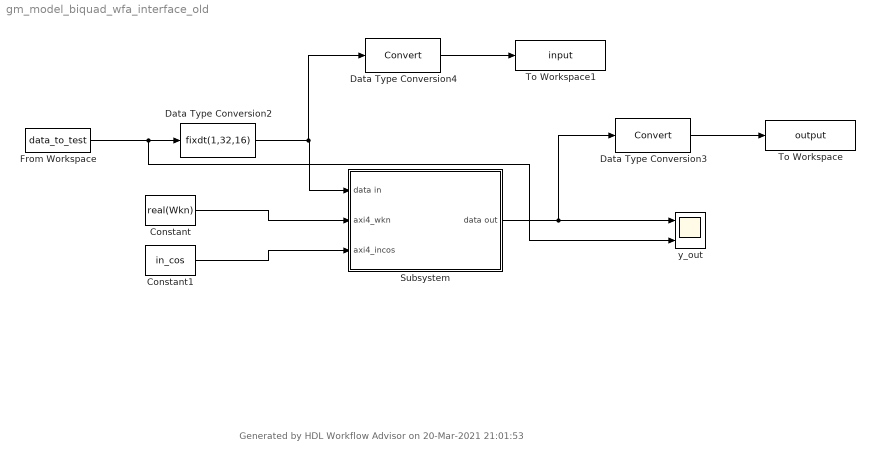
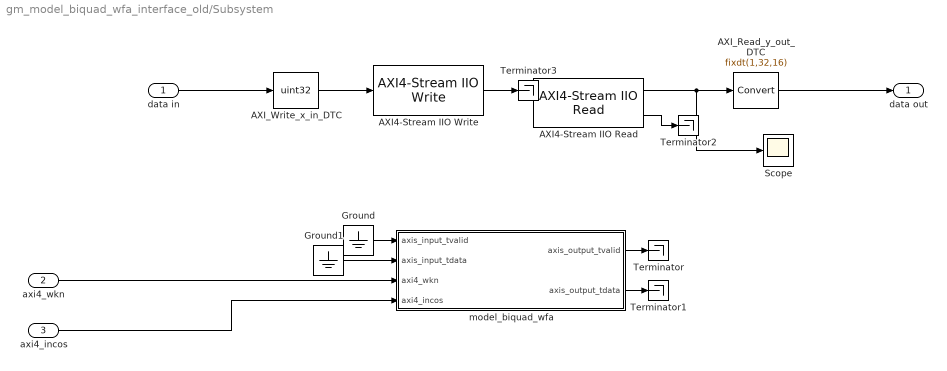
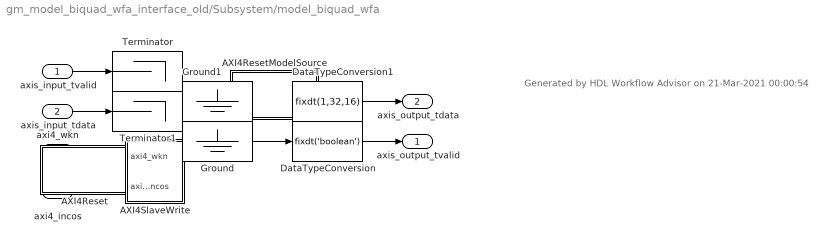
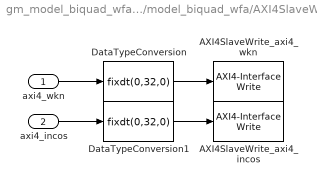
== system gm_model_biquad_wfa_interface_old/Subsystem/model_biquad_wfa/AXI4Reset ==

== system gm_model_biquad_wfa_interface_old/Subsystem/model_biquad_wfa/AXI4ResetModelSource ==

/*
 * Trial License - for use to evaluate programs for possible purchase as
 * an end-user only.
 *
 * File: gm_model_biquad_wfa_interface_old.c
 *
 * Code generated for Simulink model 'gm_model_biquad_wfa_interface_old'.
 *
 * Model version                  : 1.27
 * Simulink Coder version         : 9.4 (R2020b) 29-Jul-2020
 * C/C++ source code generated on : Sun Mar 21 00:25:24 2021
 *
 * Target selection: ert.tlc
 * Embedded hardware selection: ARM Compatible->ARM Cortex
 * Code generation objectives: Unspecified
 * Validation result: Not run
 */

#include "gm_model_biquad_wfa_interface_old.h"
#include "gm_model_biquad_wfa_interface_old_private.h"
#include "gm_model_biquad_wfa_interface_old_dt.h"

/* user code (top of source file) */
/* System '<S1>/model_biquad_wfa' */
#include "axi_lct.h"

/* Block signals (default storage) */
B_gm_model_biquad_wfa_interfa_T gm_model_biquad_wfa_interface_B;

/* Block states (default storage) */
DW_gm_model_biquad_wfa_interf_T gm_model_biquad_wfa_interfac_DW;

/* Real-time model */
static RT_MODEL_gm_model_biquad_wfa__T gm_model_biquad_wfa_interfac_M_;
RT_MODEL_gm_model_biquad_wfa__T *const gm_model_biquad_wfa_interfac_M =
  &gm_model_biquad_wfa_interfac_M_;

/* Forward declaration for local functions */
static struct iio_channel* gm_model_biquad_wf_base_getChan(struct iio_device*
  iioDev, boolean_T output);
static void gm_model_biquad_base_doTeardown(matlabshared_libiio_axistream_T *obj);
static struct iio_channel* gm_model_biquad__base_getChan_m(struct iio_device*
  iioDev, boolean_T output);
static void gm_model_biqu_base_doTeardown_m(matlabshared_libiio_axistre_m_T *obj);
static void gm_model_biqua_SystemCore_setup(matlabshared_libiio_axistream_T *obj);
static void gm_model_biq_SystemCore_setup_m(matlabshared_libiio_axistre_m_T *obj);
static struct iio_channel* gm_model_biquad_wf_base_getChan(struct iio_device*
  iioDev, boolean_T output)
{
  static const int8_T tmp_0[5] = { 100, 97, 116, 97, 48 };

  static const uint8_T tmp_2[22] = { 67U, 104U, 97U, 110U, 110U, 101U, 108U, 58U,
    32U, 37U, 115U, 32U, 110U, 111U, 116U, 32U, 102U, 111U, 117U, 110U, 100U,
    46U };

  static const uint8_T tmp_1[11] = { 69U, 82U, 82U, 79U, 82U, 91U, 37U, 100U,
    93U, 58U, 32U };

  static const uint8_T tmp[6] = { 100U, 97U, 116U, 97U, 48U, 0U };

  struct iio_channel* chanPtr;
  int32_T i;
  int32_T status;
  uint8_T b[3];
  for (i = 0; i < 6; i++) {
    gm_model_biquad_wfa_interface_B.b_o[i] = tmp[i];
  }

  chanPtr = iio_device_find_channel(iioDev,
    &gm_model_biquad_wfa_interface_B.b_o[0], (uint8_T)output);
  status = check_pointer(chanPtr);
  b[0] = 37U;
  b[1] = 100U;
  b[2] = 0U;
  for (i = 0; i < 5; i++) {
    gm_model_biquad_wfa_interface_B.c[i] = tmp_0[i];
  }

  sprintf(&gm_model_biquad_wfa_interface_B.strout_o[0], &b[0],
          &gm_model_biquad_wfa_interface_B.c[0]);
  if (status != 0) {
    for (i = 0; i < 11; i++) {
      gm_model_biquad_wfa_interface_B.b_j[i] = tmp_1[i];
    }

    for (i = 0; i < 22; i++) {
      gm_model_biquad_wfa_interface_B.b_j[i + 11] = tmp_2[i];
    }

    gm_model_biquad_wfa_interface_B.b_j[33] = 10U;
    gm_model_biquad_wfa_interface_B.b_j[34] = 0U;
    printf(&gm_model_biquad_wfa_interface_B.b_j[0], status,
           &gm_model_biquad_wfa_interface_B.strout_o[0]);
    exit(status);
  }

  return chanPtr;
}

static void gm_model_biquad_base_doTeardown(matlabshared_libiio_axistream_T *obj)
{
  int32_T status;
  if (obj->needsTeardown) {
    if (obj->bufExists) {
      iio_buffer_cancel(obj->iioBuf);
      iio_buffer_destroy(obj->iioBuf);
    }

    obj->bufExists = false;
    gm_model_biquad_wfa_interface_B.chanPtr_f = gm_model_biquad_wf_base_getChan
      (obj->iioDev, false);
    status = check_pointer(gm_model_biquad_wfa_interface_B.chanPtr_f);
    if (status == 0) {
      iio_channel_disable(gm_model_biquad_wfa_interface_B.chanPtr_f);
    }

    if (obj->bufExists) {
      iio_buffer_cancel(obj->iioBuf);
      iio_buffer_destroy(obj->iioBuf);
    }

    obj->bufExists = false;
    iio_context_destroy(obj->iioCtx);
    obj->needsTeardown = false;
  }
}

static struct iio_channel* gm_model_biquad__base_getChan_m(struct iio_device*
  iioDev, boolean_T output)
{
  static const int8_T tmp_0[5] = { 100, 97, 116, 97, 48 };

  static const uint8_T tmp_2[22] = { 67U, 104U, 97U, 110U, 110U, 101U, 108U, 58U,
    32U, 37U, 115U, 32U, 110U, 111U, 116U, 32U, 102U, 111U, 117U, 110U, 100U,
    46U };

  static const uint8_T tmp_1[11] = { 69U, 82U, 82U, 79U, 82U, 91U, 37U, 100U,
    93U, 58U, 32U };

  static const uint8_T tmp[6] = { 100U, 97U, 116U, 97U, 48U, 0U };

  struct iio_channel* chanPtr;
  int32_T i;
  int32_T status;
  uint8_T b[6];
  uint8_T b_0[3];
  for (i = 0; i < 6; i++) {
    b[i] = tmp[i];
  }

  chanPtr = iio_device_find_channel(iioDev, &b[0], (uint8_T)output);
  status = check_pointer(chanPtr);
  b_0[0] = 37U;
  b_0[1] = 100U;
  b_0[2] = 0U;
  for (i = 0; i < 5; i++) {
    gm_model_biquad_wfa_interface_B.c_b[i] = tmp_0[i];
  }

  sprintf(&gm_model_biquad_wfa_interface_B.strout_n[0], &b_0[0],
          &gm_model_biquad_wfa_interface_B.c_b[0]);
  if (status != 0) {
    for (i = 0; i < 11; i++) {
      gm_model_biquad_wfa_interface_B.b_gu[i] = tmp_1[i];
    }

    for (i = 0; i < 22; i++) {
      gm_model_biquad_wfa_interface_B.b_gu[i + 11] = tmp_2[i];
    }

    gm_model_biquad_wfa_interface_B.b_gu[33] = 10U;
    gm_model_biquad_wfa_interface_B.b_gu[34] = 0U;
    printf(&gm_model_biquad_wfa_interface_B.b_gu[0], status,
           &gm_model_biquad_wfa_interface_B.strout_n[0]);
    exit(status);
  }

  return chanPtr;
}

static void gm_model_biqu_base_doTeardown_m(matlabshared_libiio_axistre_m_T *obj)
{
  int32_T status;
  if (obj->needsTeardown) {
    if (obj->bufExists) {
      iio_buffer_cancel(obj->iioBuf);
      iio_buffer_destroy(obj->iioBuf);
    }

    obj->bufExists = false;
    gm_model_biquad_wfa_interface_B.chanPtr_o = gm_model_biquad__base_getChan_m
      (obj->iioDev, true);
    status = check_pointer(gm_model_biquad_wfa_interface_B.chanPtr_o);
    if (status == 0) {
      iio_channel_disable(gm_model_biquad_wfa_interface_B.chanPtr_o);
    }

    if (obj->bufExists) {
      iio_buffer_cancel(obj->iioBuf);
      iio_buffer_destroy(obj->iioBuf);
    }

    obj->bufExists = false;
    iio_context_destroy(obj->iioCtx);
    obj->needsTeardown = false;
  }
}

static void gm_model_biqua_SystemCore_setup(matlabshared_libiio_axistream_T *obj)
{
  static const uint8_T tmp[116] = { 70U, 97U, 105U, 108U, 101U, 100U, 32U, 116U,
    111U, 32U, 99U, 114U, 101U, 97U, 116U, 101U, 32U, 99U, 111U, 110U, 116U,
    101U, 120U, 116U, 32U, 102U, 111U, 114U, 32U, 117U, 114U, 105U, 58U, 32U,
    37U, 115U, 32U, 10U, 84U, 104U, 101U, 32U, 97U, 100U, 100U, 114U, 101U, 115U,
    115U, 32U, 105U, 115U, 32U, 110U, 111U, 116U, 32U, 97U, 118U, 97U, 105U,
    108U, 97U, 98U, 108U, 101U, 46U, 32U, 77U, 97U, 107U, 101U, 32U, 115U, 117U,
    114U, 101U, 32U, 116U, 104U, 101U, 32U, 100U, 101U, 118U, 105U, 99U, 101U,
    32U, 105U, 115U, 32U, 99U, 111U, 110U, 110U, 101U, 99U, 116U, 101U, 100U,
    32U, 97U, 110U, 100U, 32U, 116U, 114U, 121U, 32U, 97U, 103U, 97U, 105U, 110U,
    46U };

  static const uint8_T tmp_0[64] = { 69U, 82U, 82U, 79U, 82U, 91U, 37U, 100U,
    93U, 58U, 32U, 70U, 97U, 105U, 108U, 101U, 100U, 32U, 116U, 111U, 32U, 105U,
    110U, 105U, 116U, 105U, 97U, 108U, 105U, 122U, 101U, 32U, 115U, 116U, 114U,
    101U, 97U, 109U, 32U, 100U, 101U, 118U, 105U, 99U, 101U, 58U, 32U, 109U,
    119U, 105U, 112U, 99U, 111U, 114U, 101U, 48U, 58U, 115U, 50U, 109U, 109U,
    48U, 10U, 0U };

  static const uint8_T tmp_c[57] = { 69U, 82U, 82U, 79U, 82U, 91U, 37U, 100U,
    93U, 58U, 32U, 70U, 97U, 105U, 108U, 101U, 100U, 32U, 116U, 111U, 32U, 99U,
    114U, 101U, 97U, 116U, 101U, 32U, 98U, 117U, 102U, 102U, 101U, 114U, 32U,
    102U, 111U, 114U, 58U, 32U, 109U, 119U, 105U, 112U, 99U, 111U, 114U, 101U,
    48U, 58U, 115U, 50U, 109U, 109U, 48U, 10U, 0U };

  static const uint8_T tmp_d[39] = { 70U, 97U, 105U, 108U, 101U, 100U, 32U, 116U,
    111U, 32U, 99U, 111U, 110U, 102U, 105U, 103U, 117U, 114U, 101U, 32U, 100U,
    101U, 118U, 105U, 99U, 101U, 32U, 97U, 110U, 100U, 32U, 98U, 117U, 102U,
    102U, 101U, 114U, 115U, 46U };

  static const uint8_T tmp_6[31] = { 70U, 97U, 105U, 108U, 101U, 100U, 32U, 116U,
    111U, 32U, 115U, 101U, 116U, 117U, 112U, 32U, 107U, 101U, 114U, 110U, 101U,
    108U, 32U, 98U, 117U, 102U, 102U, 101U, 114U, 115U, 46U };

  static const uint8_T tmp_f[31] = { 70U, 97U, 105U, 108U, 101U, 100U, 32U, 116U,
    111U, 32U, 115U, 101U, 116U, 117U, 112U, 32U, 98U, 117U, 102U, 102U, 101U,
    114U, 32U, 112U, 111U, 108U, 108U, 105U, 110U, 103U, 46U };

  static const uint8_T tmp_4[30] = { 70U, 97U, 105U, 108U, 101U, 100U, 32U, 116U,
    111U, 32U, 115U, 101U, 116U, 32U, 99U, 111U, 110U, 116U, 101U, 120U, 116U,
    32U, 116U, 105U, 109U, 101U, 111U, 117U, 116U, 46U };

  static const uint8_T tmp_5[26] = { 70U, 97U, 105U, 108U, 101U, 100U, 32U, 116U,
    111U, 32U, 102U, 105U, 110U, 100U, 32U, 100U, 101U, 118U, 105U, 99U, 101U,
    58U, 32U, 37U, 115U, 46U };

  static const uint8_T tmp_9[22] = { 67U, 104U, 97U, 110U, 110U, 101U, 108U, 58U,
    32U, 37U, 115U, 32U, 110U, 111U, 116U, 32U, 102U, 111U, 117U, 110U, 100U,
    46U };

  static const uint8_T tmp_e[19] = { 68U, 97U, 116U, 97U, 32U, 115U, 105U, 122U,
    101U, 32U, 109U, 105U, 115U, 109U, 97U, 116U, 99U, 104U, 46U };

  static const uint8_T tmp_7[17] = { 114U, 101U, 115U, 101U, 116U, 95U, 116U,
    108U, 97U, 115U, 116U, 95U, 109U, 111U, 100U, 101U, 0U };

  static const uint8_T tmp_3[16] = { 109U, 119U, 105U, 112U, 99U, 111U, 114U,
    101U, 48U, 58U, 115U, 50U, 109U, 109U, 48U, 0U };

  static const uint8_T tmp_2[11] = { 69U, 82U, 82U, 79U, 82U, 91U, 37U, 100U,
    93U, 58U, 32U };

  static const uint8_T tmp_a[11] = { 116U, 108U, 97U, 115U, 116U, 95U, 109U,
    111U, 100U, 101U, 0U };

  static const uint8_T tmp_8[10] = { 112U, 114U, 101U, 98U, 117U, 102U, 102U,
    101U, 114U, 0U };

  static const uint8_T tmp_1[7] = { 108U, 111U, 99U, 97U, 108U, 58U, 0U };

  static const uint8_T tmp_b[5] = { 97U, 117U, 116U, 111U, 0U };

  int32_T status;
  int32_T status_0;
  uint32_T count;
  uint32_T qY;
  uint32_T qY_0;
  uint32_T total;
  uint8_T c[5];
  uint8_T b[3];
  boolean_T isScan;
  obj->isSetupComplete = false;
  obj->isInitialized = 1;
  obj->iioCtx = NULL;
  obj->iioDev = NULL;
  obj->iioBuf = NULL;
  for (status_0 = 0; status_0 < 7; status_0++) {
    gm_model_biquad_wfa_interface_B.b_ny[status_0] = tmp_1[status_0];
  }

  obj->iioCtx = iio_create_context_from_uri
    (&gm_model_biquad_wfa_interface_B.b_ny[0]);
  status = check_pointer(obj->iioCtx);
  if (status != 0) {
    for (status_0 = 0; status_0 < 11; status_0++) {
      gm_model_biquad_wfa_interface_B.b[status_0] = tmp_2[status_0];
    }

    memcpy(&gm_model_biquad_wfa_interface_B.b[11], &tmp[0], 116U * sizeof
           (uint8_T));
    gm_model_biquad_wfa_interface_B.b[127] = 10U;
    gm_model_biquad_wfa_interface_B.b[128] = 0U;
    for (status_0 = 0; status_0 < 7; status_0++) {
      gm_model_biquad_wfa_interface_B.b_ny[status_0] = tmp_1[status_0];
    }

    printf(&gm_model_biquad_wfa_interface_B.b[0], status,
           &gm_model_biquad_wfa_interface_B.b_ny[0]);
    exit(status);
  }

  status = iio_context_set_timeout(obj->iioCtx, 0U);
  if (status != 0) {
    for (status_0 = 0; status_0 < 11; status_0++) {
      gm_model_biquad_wfa_interface_B.b_g[status_0] = tmp_2[status_0];
    }

    for (status_0 = 0; status_0 < 30; status_0++) {
      gm_model_biquad_wfa_interface_B.b_g[status_0 + 11] = tmp_4[status_0];
    }

    gm_model_biquad_wfa_interface_B.b_g[41] = 10U;
    gm_model_biquad_wfa_interface_B.b_g[42] = 0U;
    printf(&gm_model_biquad_wfa_interface_B.b_g[0], status);
    exit(status);
  }

  for (status_0 = 0; status_0 < 16; status_0++) {
    gm_model_biquad_wfa_interface_B.b_h[status_0] = tmp_3[status_0];
  }

  gm_model_biquad_wfa_interface_B.devPtr = iio_context_find_device(obj->iioCtx,
    &gm_model_biquad_wfa_interface_B.b_h[0]);
  status = check_pointer(gm_model_biquad_wfa_interface_B.devPtr);
  if (status != 0) {
    for (status_0 = 0; status_0 < 11; status_0++) {
      gm_model_biquad_wfa_interface_B.b_me[status_0] = tmp_2[status_0];
    }

    for (status_0 = 0; status_0 < 26; status_0++) {
      gm_model_biquad_wfa_interface_B.b_me[status_0 + 11] = tmp_5[status_0];
    }

    gm_model_biquad_wfa_interface_B.b_me[37] = 10U;
    gm_model_biquad_wfa_interface_B.b_me[38] = 0U;
    for (status_0 = 0; status_0 < 16; status_0++) {
      gm_model_biquad_wfa_interface_B.b_h[status_0] = tmp_3[status_0];
    }

    printf(&gm_model_biquad_wfa_interface_B.b_me[0], status,
           &gm_model_biquad_wfa_interface_B.b_h[0]);
    exit(status);
  }

  obj->iioDev = gm_model_biquad_wfa_interface_B.devPtr;
  obj->needsTeardown = true;
  total = iio_device_get_channels_count(obj->iioDev);
  count = 0U;
  qY = total - /*MW:OvSatOk*/ 1U;
  if (total - 1U > total) {
    qY = 0U;
  }

  for (total = 0U; total <= qY; total++) {
    gm_model_biquad_wfa_interface_B.chanPtr = iio_device_get_channel(obj->iioDev,
      total);
    status = check_pointer(gm_model_biquad_wfa_interface_B.chanPtr);
    b[0] = 37U;
    b[1] = 100U;
    b[2] = 0U;
    qY_0 = total;
    if (total > 2147483647U) {
      qY_0 = 2147483647U;
    }

    sprintf(&gm_model_biquad_wfa_interface_B.strout[0], &b[0], (int32_T)qY_0);
    if (status != 0) {
      for (status_0 = 0; status_0 < 11; status_0++) {
        gm_model_biquad_wfa_interface_B.b_l[status_0] = tmp_2[status_0];
      }

      for (status_0 = 0; status_0 < 22; status_0++) {
        gm_model_biquad_wfa_interface_B.b_l[status_0 + 11] = tmp_9[status_0];
      }

      gm_model_biquad_wfa_interface_B.b_l[33] = 10U;
      gm_model_biquad_wfa_interface_B.b_l[34] = 0U;
      printf(&gm_model_biquad_wfa_interface_B.b_l[0], status,
             &gm_model_biquad_wfa_interface_B.strout[0]);
      exit(status);
    }

    status = check_pointer(gm_model_biquad_wfa_interface_B.chanPtr);
    if (status == 0) {
      isScan = iio_channel_is_scan_element
        (gm_model_biquad_wfa_interface_B.chanPtr);
      if (isScan) {
        qY_0 = count + /*MW:OvSatOk*/ 1U;
        if (count + 1U < count) {
          qY_0 = MAX_uint32_T;
        }

        count = qY_0;
      }
    }
  }

  if (count > 0U) {
    obj->buffersAvailable = true;
  }

  if (obj->buffersAvailable) {
    status = iio_device_set_kernel_buffers_count(obj->iioDev, 4U);
    if (status != 0) {
      for (status_0 = 0; status_0 < 11; status_0++) {
        gm_model_biquad_wfa_interface_B.b_cv[status_0] = tmp_2[status_0];
      }

      for (status_0 = 0; status_0 < 31; status_0++) {
        gm_model_biquad_wfa_interface_B.b_cv[status_0 + 11] = tmp_6[status_0];
      }

      gm_model_biquad_wfa_interface_B.b_cv[42] = 10U;
      gm_model_biquad_wfa_interface_B.b_cv[43] = 0U;
      printf(&gm_model_biquad_wfa_interface_B.b_cv[0], status);
      exit(status);
    }
  }

  gm_model_biquad_wfa_interface_B.chanPtr = gm_model_biquad_wf_base_getChan
    (obj->iioDev, false);
  status = check_pointer(gm_model_biquad_wfa_interface_B.chanPtr);
  if (status == 0) {
    iio_channel_enable(gm_model_biquad_wfa_interface_B.chanPtr);
  }

  status = 0;
  for (status_0 = 0; status_0 < 17; status_0++) {
    gm_model_biquad_wfa_interface_B.b_ln[status_0] = tmp_7[status_0];
  }

  for (status_0 = 0; status_0 < 10; status_0++) {
    gm_model_biquad_wfa_interface_B.c_bj[status_0] = tmp_8[status_0];
  }

  gm_model_biquad_wfa_interface_B.ssizeT = iio_device_attr_write(obj->iioDev,
    &gm_model_biquad_wfa_interface_B.b_ln[0],
    &gm_model_biquad_wfa_interface_B.c_bj[0]);
  for (status_0 = 0; status_0 < 11; status_0++) {
    gm_model_biquad_wfa_interface_B.b_e[status_0] = tmp_a[status_0];
  }

  for (status_0 = 0; status_0 < 5; status_0++) {
    c[status_0] = tmp_b[status_0];
  }

  gm_model_biquad_wfa_interface_B.ssizeT_j = iio_device_attr_write(obj->iioDev,
    &gm_model_biquad_wfa_interface_B.b_e[0], &c[0]);
  if (((int32_T)gm_model_biquad_wfa_interface_B.ssizeT <= 0) || ((int32_T)
       gm_model_biquad_wfa_interface_B.ssizeT_j <= 0)) {
    status = -19;
  }

  if (status != 0) {
    gm_model_biquad_wfa_interface_B.chanPtr = gm_model_biquad_wf_base_getChan
      (obj->iioDev, false);
    status_0 = check_pointer(gm_model_biquad_wfa_interface_B.chanPtr);
    if (status_0 == 0) {
      iio_channel_disable(gm_model_biquad_wfa_interface_B.chanPtr);
    }

    memcpy(&gm_model_biquad_wfa_interface_B.b_c[0], &tmp_0[0], sizeof(uint8_T) <<
           6U);
    printf(&gm_model_biquad_wfa_interface_B.b_c[0], status);
  } else {
    obj->iioBuf = iio_device_create_buffer(obj->iioDev, 32U, 0);
    status = check_pointer(obj->iioBuf);
    if (status == 0) {
      obj->bufExists = true;
    }

    if (status != 0) {
      gm_model_biquad_wfa_interface_B.chanPtr = gm_model_biquad_wf_base_getChan
        (obj->iioDev, false);
      status_0 = check_pointer(gm_model_biquad_wfa_interface_B.chanPtr);
      if (status_0 == 0) {
        iio_channel_disable(gm_model_biquad_wfa_interface_B.chanPtr);
      }

      for (status_0 = 0; status_0 < 57; status_0++) {
        gm_model_biquad_wfa_interface_B.b_k[status_0] = tmp_c[status_0];
      }

      printf(&gm_model_biquad_wfa_interface_B.b_k[0], status);
    }
  }

  if (status != 0) {
    for (status_0 = 0; status_0 < 11; status_0++) {
      gm_model_biquad_wfa_interface_B.b_b[status_0] = tmp_2[status_0];
    }

    for (status_0 = 0; status_0 < 39; status_0++) {
      gm_model_biquad_wfa_interface_B.b_b[status_0 + 11] = tmp_d[status_0];
    }

    gm_model_biquad_wfa_interface_B.b_b[50] = 10U;
    gm_model_biquad_wfa_interface_B.b_b[51] = 0U;
    printf(&gm_model_biquad_wfa_interface_B.b_b[0], status);
    exit(status);
  }

  if (obj->buffersAvailable) {
    gm_model_biquad_wfa_interface_B.ptrDiff = iio_buffer_step(obj->iioBuf);
    isScan = false;
    if ((uint32_T)gm_model_biquad_wfa_interface_B.ptrDiff == 4U) {
      isScan = true;
    }

    if (!isScan) {
      gm_model_biquad_base_doTeardown(obj);
      for (status_0 = 0; status_0 < 11; status_0++) {
        gm_model_biquad_wfa_interface_B.b_dh[status_0] = tmp_2[status_0];
      }

      for (status_0 = 0; status_0 < 19; status_0++) {
        gm_model_biquad_wfa_interface_B.b_dh[status_0 + 11] = tmp_e[status_0];
      }

      gm_model_biquad_wfa_interface_B.b_dh[30] = 10U;
      gm_model_biquad_wfa_interface_B.b_dh[31] = 0U;
      printf(&gm_model_biquad_wfa_interface_B.b_dh[0], -22);
      exit(-22);
    }
  }

  if (obj->buffersAvailable) {
    obj->pollConfig = EmptyPollConfig;
    status = mw_iio_setup_poll(&obj->pollConfig, obj->iioBuf, 10.0, false);
    if (status != 0) {
      gm_model_biquad_base_doTeardown(obj);
      if (status != 0) {
        for (status_0 = 0; status_0 < 11; status_0++) {
          gm_model_biquad_wfa_interface_B.b_cv[status_0] = tmp_2[status_0];
        }

        for (status_0 = 0; status_0 < 31; status_0++) {
          gm_model_biquad_wfa_interface_B.b_cv[status_0 + 11] = tmp_f[status_0];
        }

        gm_model_biquad_wfa_interface_B.b_cv[42] = 10U;
        gm_model_biquad_wfa_interface_B.b_cv[43] = 0U;
        printf(&gm_model_biquad_wfa_interface_B.b_cv[0], status);
        exit(status);
      }
    }
  } else {
    obj->pollConfig = EmptyPollConfig;
  }

  obj->pNumBufferBytes = 128.0;
  obj->isSetupComplete = true;
}

static void gm_model_biq_SystemCore_setup_m(matlabshared_libiio_axistre_m_T *obj)
{
  static const uint8_T tmp[116] = { 70U, 97U, 105U, 108U, 101U, 100U, 32U, 116U,
    111U, 32U, 99U, 114U, 101U, 97U, 116U, 101U, 32U, 99U, 111U, 110U, 116U,
    101U, 120U, 116U, 32U, 102U, 111U, 114U, 32U, 117U, 114U, 105U, 58U, 32U,
    37U, 115U, 32U, 10U, 84U, 104U, 101U, 32U, 97U, 100U, 100U, 114U, 101U, 115U,
    115U, 32U, 105U, 115U, 32U, 110U, 111U, 116U, 32U, 97U, 118U, 97U, 105U,
    108U, 97U, 98U, 108U, 101U, 46U, 32U, 77U, 97U, 107U, 101U, 32U, 115U, 117U,
    114U, 101U, 32U, 116U, 104U, 101U, 32U, 100U, 101U, 118U, 105U, 99U, 101U,
    32U, 105U, 115U, 32U, 99U, 111U, 110U, 110U, 101U, 99U, 116U, 101U, 100U,
    32U, 97U, 110U, 100U, 32U, 116U, 114U, 121U, 32U, 97U, 103U, 97U, 105U, 110U,
    46U };

  static const uint8_T tmp_7[57] = { 69U, 82U, 82U, 79U, 82U, 91U, 37U, 100U,
    93U, 58U, 32U, 70U, 97U, 105U, 108U, 101U, 100U, 32U, 116U, 111U, 32U, 99U,
    114U, 101U, 97U, 116U, 101U, 32U, 98U, 117U, 102U, 102U, 101U, 114U, 32U,
    102U, 111U, 114U, 58U, 32U, 109U, 119U, 105U, 112U, 99U, 111U, 114U, 101U,
    48U, 58U, 109U, 109U, 50U, 115U, 48U, 10U, 0U };

  static const uint8_T tmp_a[39] = { 70U, 97U, 105U, 108U, 101U, 100U, 32U, 116U,
    111U, 32U, 99U, 111U, 110U, 102U, 105U, 103U, 117U, 114U, 101U, 32U, 100U,
    101U, 118U, 105U, 99U, 101U, 32U, 97U, 110U, 100U, 32U, 98U, 117U, 102U,
    102U, 101U, 114U, 115U, 46U };

  static const uint8_T tmp_5[31] = { 70U, 97U, 105U, 108U, 101U, 100U, 32U, 116U,
    111U, 32U, 115U, 101U, 116U, 117U, 112U, 32U, 107U, 101U, 114U, 110U, 101U,
    108U, 32U, 98U, 117U, 102U, 102U, 101U, 114U, 115U, 46U };

  static const uint8_T tmp_9[31] = { 70U, 97U, 105U, 108U, 101U, 100U, 32U, 116U,
    111U, 32U, 115U, 101U, 116U, 117U, 112U, 32U, 98U, 117U, 102U, 102U, 101U,
    114U, 32U, 112U, 111U, 108U, 108U, 105U, 110U, 103U, 46U };

  static const uint8_T tmp_3[30] = { 70U, 97U, 105U, 108U, 101U, 100U, 32U, 116U,
    111U, 32U, 115U, 101U, 116U, 32U, 99U, 111U, 110U, 116U, 101U, 120U, 116U,
    32U, 116U, 105U, 109U, 101U, 111U, 117U, 116U, 46U };

  static const uint8_T tmp_4[26] = { 70U, 97U, 105U, 108U, 101U, 100U, 32U, 116U,
    111U, 32U, 102U, 105U, 110U, 100U, 32U, 100U, 101U, 118U, 105U, 99U, 101U,
    58U, 32U, 37U, 115U, 46U };

  static const uint8_T tmp_6[22] = { 67U, 104U, 97U, 110U, 110U, 101U, 108U, 58U,
    32U, 37U, 115U, 32U, 110U, 111U, 116U, 32U, 102U, 111U, 117U, 110U, 100U,
    46U };

  static const uint8_T tmp_8[19] = { 68U, 97U, 116U, 97U, 32U, 115U, 105U, 122U,
    101U, 32U, 109U, 105U, 115U, 109U, 97U, 116U, 99U, 104U, 46U };

  static const uint8_T tmp_2[16] = { 109U, 119U, 105U, 112U, 99U, 111U, 114U,
    101U, 48U, 58U, 109U, 109U, 50U, 115U, 48U, 0U };

  static const uint8_T tmp_1[11] = { 69U, 82U, 82U, 79U, 82U, 91U, 37U, 100U,
    93U, 58U, 32U };

  static const uint8_T tmp_0[7] = { 108U, 111U, 99U, 97U, 108U, 58U, 0U };

  int32_T status;
  int32_T status_0;
  uint32_T count;
  uint32_T qY;
  uint32_T qY_0;
  uint32_T total;
  uint8_T b[3];
  boolean_T isScan;
  obj->isSetupComplete = false;
  obj->isInitialized = 1;
  obj->iioCtx = NULL;
  obj->iioDev = NULL;
  obj->iioBuf = NULL;
  for (status_0 = 0; status_0 < 7; status_0++) {
    gm_model_biquad_wfa_interface_B.b_i[status_0] = tmp_0[status_0];
  }

  obj->iioCtx = iio_create_context_from_uri
    (&gm_model_biquad_wfa_interface_B.b_i[0]);
  status = check_pointer(obj->iioCtx);
  if (status != 0) {
    for (status_0 = 0; status_0 < 11; status_0++) {
      gm_model_biquad_wfa_interface_B.b_m[status_0] = tmp_1[status_0];
    }

    memcpy(&gm_model_biquad_wfa_interface_B.b_m[11], &tmp[0], 116U * sizeof
           (uint8_T));
    gm_model_biquad_wfa_interface_B.b_m[127] = 10U;
    gm_model_biquad_wfa_interface_B.b_m[128] = 0U;
    for (status_0 = 0; status_0 < 7; status_0++) {
      gm_model_biquad_wfa_interface_B.b_i[status_0] = tmp_0[status_0];
    }

    printf(&gm_model_biquad_wfa_interface_B.b_m[0], status,
           &gm_model_biquad_wfa_interface_B.b_i[0]);
    exit(status);
  }

  status = iio_context_set_timeout(obj->iioCtx, 0U);
  if (status != 0) {
    for (status_0 = 0; status_0 < 11; status_0++) {
      gm_model_biquad_wfa_interface_B.b_g1[status_0] = tmp_1[status_0];
    }

    for (status_0 = 0; status_0 < 30; status_0++) {
      gm_model_biquad_wfa_interface_B.b_g1[status_0 + 11] = tmp_3[status_0];
    }

    gm_model_biquad_wfa_interface_B.b_g1[41] = 10U;
    gm_model_biquad_wfa_interface_B.b_g1[42] = 0U;
    printf(&gm_model_biquad_wfa_interface_B.b_g1[0], status);
    exit(status);
  }

  for (status_0 = 0; status_0 < 16; status_0++) {
    gm_model_biquad_wfa_interface_B.b_bn[status_0] = tmp_2[status_0];
  }

  gm_model_biquad_wfa_interface_B.devPtr_a = iio_context_find_device(obj->iioCtx,
    &gm_model_biquad_wfa_interface_B.b_bn[0]);
  status = check_pointer(gm_model_biquad_wfa_interface_B.devPtr_a);
  if (status != 0) {
    for (status_0 = 0; status_0 < 11; status_0++) {
      gm_model_biquad_wfa_interface_B.b_n[status_0] = tmp_1[status_0];
    }

    for (status_0 = 0; status_0 < 26; status_0++) {
      gm_model_biquad_wfa_interface_B.b_n[status_0 + 11] = tmp_4[status_0];
    }

    gm_model_biquad_wfa_interface_B.b_n[37] = 10U;
    gm_model_biquad_wfa_interface_B.b_n[38] = 0U;
    for (status_0 = 0; status_0 < 16; status_0++) {
      gm_model_biquad_wfa_interface_B.b_bn[status_0] = tmp_2[status_0];
    }

    printf(&gm_model_biquad_wfa_interface_B.b_n[0], status,
           &gm_model_biquad_wfa_interface_B.b_bn[0]);
    exit(status);
  }

  obj->iioDev = gm_model_biquad_wfa_interface_B.devPtr_a;
  obj->needsTeardown = true;
  total = iio_device_get_channels_count(obj->iioDev);
  count = 0U;
  qY = total - /*MW:OvSatOk*/ 1U;
  if (total - 1U > total) {
    qY = 0U;
  }

  for (total = 0U; total <= qY; total++) {
    gm_model_biquad_wfa_interface_B.chanPtr_j = iio_device_get_channel
      (obj->iioDev, total);
    status = check_pointer(gm_model_biquad_wfa_interface_B.chanPtr_j);
    b[0] = 37U;
    b[1] = 100U;
    b[2] = 0U;
    qY_0 = total;
    if (total > 2147483647U) {
      qY_0 = 2147483647U;
    }

    sprintf(&gm_model_biquad_wfa_interface_B.strout_b[0], &b[0], (int32_T)qY_0);
    if (status != 0) {
      for (status_0 = 0; status_0 < 11; status_0++) {
        gm_model_biquad_wfa_interface_B.b_d[status_0] = tmp_1[status_0];
      }

      for (status_0 = 0; status_0 < 22; status_0++) {
        gm_model_biquad_wfa_interface_B.b_d[status_0 + 11] = tmp_6[status_0];
      }

      gm_model_biquad_wfa_interface_B.b_d[33] = 10U;
      gm_model_biquad_wfa_interface_B.b_d[34] = 0U;
      printf(&gm_model_biquad_wfa_interface_B.b_d[0], status,
             &gm_model_biquad_wfa_interface_B.strout_b[0]);
      exit(status);
    }

    status = check_pointer(gm_model_biquad_wfa_interface_B.chanPtr_j);
    if (status == 0) {
      isScan = iio_channel_is_scan_element
        (gm_model_biquad_wfa_interface_B.chanPtr_j);
      if (isScan) {
        qY_0 = count + /*MW:OvSatOk*/ 1U;
        if (count + 1U < count) {
          qY_0 = MAX_uint32_T;
        }

        count = qY_0;
      }
    }
  }

  if (count > 0U) {
    obj->buffersAvailable = true;
  }

  if (obj->buffersAvailable) {
    status = iio_device_set_kernel_buffers_count(obj->iioDev, 4U);
    if (status != 0) {
      for (status_0 = 0; status_0 < 11; status_0++) {
        gm_model_biquad_wfa_interface_B.b_f[status_0] = tmp_1[status_0];
      }

      for (status_0 = 0; status_0 < 31; status_0++) {
        gm_model_biquad_wfa_interface_B.b_f[status_0 + 11] = tmp_5[status_0];
      }

      gm_model_biquad_wfa_interface_B.b_f[42] = 10U;
      gm_model_biquad_wfa_interface_B.b_f[43] = 0U;
      printf(&gm_model_biquad_wfa_interface_B.b_f[0], status);
      exit(status);
    }
  }

  gm_model_biquad_wfa_interface_B.chanPtr_j = gm_model_biquad__base_getChan_m
    (obj->iioDev, true);
  status = check_pointer(gm_model_biquad_wfa_interface_B.chanPtr_j);
  if (status == 0) {
    iio_channel_enable(gm_model_biquad_wfa_interface_B.chanPtr_j);
  }

  obj->iioBuf = iio_device_create_buffer(obj->iioDev, 32U, 0);
  status = check_pointer(obj->iioBuf);
  if (status == 0) {
    obj->bufExists = true;
  }

  if (status != 0) {
    gm_model_biquad_wfa_interface_B.chanPtr_j = gm_model_biquad__base_getChan_m
      (obj->iioDev, true);
    status_0 = check_pointer(gm_model_biquad_wfa_interface_B.chanPtr_j);
    if (status_0 == 0) {
      iio_channel_disable(gm_model_biquad_wfa_interface_B.chanPtr_j);
    }

    for (status_0 = 0; status_0 < 57; status_0++) {
      gm_model_biquad_wfa_interface_B.b_cx[status_0] = tmp_7[status_0];
    }

    printf(&gm_model_biquad_wfa_interface_B.b_cx[0], status);
    if (status != 0) {
      for (status_0 = 0; status_0 < 11; status_0++) {
        gm_model_biquad_wfa_interface_B.b_p[status_0] = tmp_1[status_0];
      }

      for (status_0 = 0; status_0 < 39; status_0++) {
        gm_model_biquad_wfa_interface_B.b_p[status_0 + 11] = tmp_a[status_0];
      }

      gm_model_biquad_wfa_interface_B.b_p[50] = 10U;
      gm_model_biquad_wfa_interface_B.b_p[51] = 0U;
      printf(&gm_model_biquad_wfa_interface_B.b_p[0], status);
      exit(status);
    }
  }

  if (obj->buffersAvailable) {
    gm_model_biquad_wfa_interface_B.ptrDiff_j = iio_buffer_step(obj->iioBuf);
    isScan = false;
    if ((uint32_T)gm_model_biquad_wfa_interface_B.ptrDiff_j == 4U) {
      isScan = true;
    }

    if (!isScan) {
      gm_model_biqu_base_doTeardown_m(obj);
      for (status_0 = 0; status_0 < 11; status_0++) {
        gm_model_biquad_wfa_interface_B.b_dy[status_0] = tmp_1[status_0];
      }

      for (status_0 = 0; status_0 < 19; status_0++) {
        gm_model_biquad_wfa_interface_B.b_dy[status_0 + 11] = tmp_8[status_0];
      }

      gm_model_biquad_wfa_interface_B.b_dy[30] = 10U;
      gm_model_biquad_wfa_interface_B.b_dy[31] = 0U;
      printf(&gm_model_biquad_wfa_interface_B.b_dy[0], -22);
      exit(-22);
    }
  }

  if (obj->buffersAvailable) {
    obj->pollConfig = EmptyPollConfig;
    status = mw_iio_setup_poll(&obj->pollConfig, obj->iioBuf, 0.0, true);
    if (status != 0) {
      gm_model_biqu_base_doTeardown_m(obj);
      if (status != 0) {
        for (status_0 = 0; status_0 < 11; status_0++) {
          gm_model_biquad_wfa_interface_B.b_f[status_0] = tmp_1[status_0];
        }

        for (status_0 = 0; status_0 < 31; status_0++) {
          gm_model_biquad_wfa_interface_B.b_f[status_0 + 11] = tmp_9[status_0];
        }

        gm_model_biquad_wfa_interface_B.b_f[42] = 10U;
        gm_model_biquad_wfa_interface_B.b_f[43] = 0U;
        printf(&gm_model_biquad_wfa_interface_B.b_f[0], status);
        exit(status);
      }
    }
  } else {
    obj->pollConfig = EmptyPollConfig;
  }

  obj->pNumBufferBytes = 128.0;
  obj->isSetupComplete = true;
}

/* Model step function */
void gm_model_biquad_wfa_interface_old_step(void)
{
  static const uint8_T tmp_2[24] = { 70U, 97U, 105U, 108U, 101U, 100U, 32U, 116U,
    111U, 32U, 114U, 101U, 102U, 105U, 108U, 108U, 32U, 98U, 117U, 102U, 102U,
    101U, 114U, 46U };

  static const uint8_T tmp_3[22] = { 70U, 97U, 105U, 108U, 101U, 100U, 32U, 116U,
    111U, 32U, 112U, 117U, 115U, 104U, 32U, 98U, 117U, 102U, 102U, 101U, 114U,
    46U };

  static const uint8_T tmp_1[19] = { 70U, 97U, 105U, 108U, 101U, 100U, 32U, 116U,
    111U, 32U, 103U, 101U, 116U, 32U, 100U, 97U, 116U, 97U, 46U };

  static const uint8_T tmp_0[11] = { 69U, 82U, 82U, 79U, 82U, 91U, 37U, 100U,
    93U, 58U, 32U };

  ssize_t ssizeT;
  void* BufferStartPtr;
  real_T tmp;
  int32_T i;
  int32_T status;
  uint32_T rtb_DataTypeConversion;

  /* MATLABSystem: '<S1>/AXI4-Stream IIO Read' */
  status = mw_iio_poll(&gm_model_biquad_wfa_interfac_DW.obj.pollConfig);
  if (status != -110) {
    if (status != 0) {
      for (i = 0; i < 11; i++) {
        gm_model_biquad_wfa_interface_B.b_lx[i] = tmp_0[i];
      }

      for (i = 0; i < 19; i++) {
        gm_model_biquad_wfa_interface_B.b_lx[i + 11] = tmp_1[i];
      }

      gm_model_biquad_wfa_interface_B.b_lx[30] = 10U;
      gm_model_biquad_wfa_interface_B.b_lx[31] = 0U;
      printf(&gm_model_biquad_wfa_interface_B.b_lx[0], status);
      exit(status);
    }

    ssizeT = iio_buffer_refill(gm_model_biquad_wfa_interfac_DW.obj.iioBuf);
    status = (int32_T)ssizeT;
    if (((int32_T)ssizeT >= 0) && ((int32_T)ssizeT !=
         gm_model_biquad_wfa_interfac_DW.obj.pNumBufferBytes)) {
      status = -5;
    }

    if (status < 0) {
      for (i = 0; i < 11; i++) {
        gm_model_biquad_wfa_interface_B.b_pp[i] = tmp_0[i];
      }

      for (i = 0; i < 24; i++) {
        gm_model_biquad_wfa_interface_B.b_pp[i + 11] = tmp_2[i];
      }

      gm_model_biquad_wfa_interface_B.b_pp[35] = 10U;
      gm_model_biquad_wfa_interface_B.b_pp[36] = 0U;
      printf(&gm_model_biquad_wfa_interface_B.b_pp[0], status);
      exit(status);
    }

    BufferStartPtr = iio_buffer_start(gm_model_biquad_wfa_interfac_DW.obj.iioBuf);
    memcpy(&gm_model_biquad_wfa_interface_B.AXI4StreamIIORead_o1[0],
           BufferStartPtr, 128U);
  }

  /* End of MATLABSystem: '<S1>/AXI4-Stream IIO Read' */
  for (i = 0; i < 32; i++) {
    /* DataTypeConversion: '<S1>/AXI_Read_y_out_DTC' incorporates:
     *  MATLABSystem: '<S1>/AXI4-Stream IIO Read'
     */
    gm_model_biquad_wfa_interface_B.AXI_Read_y_out_DTC[i] = (int32_T)
      gm_model_biquad_wfa_interface_B.AXI4StreamIIORead_o1[i];

    /* DataTypeConversion: '<Root>/Data Type Conversion3' incorporates:
     *  DataTypeConversion: '<S1>/AXI_Read_y_out_DTC'
     */
    gm_model_biquad_wfa_interface_B.DataTypeConversion3[i] = (real_T)
      gm_model_biquad_wfa_interface_B.AXI_Read_y_out_DTC[i] * 1.52587890625E-5;
  }

  /* FromWorkspace: '<Root>/From Workspace' */
  {
    int_T currIndex =
      gm_model_biquad_wfa_interfac_DW.FromWorkspace_IWORK.PrevIndex+1;
    real_T *pDataValues = (real_T *)
      gm_model_biquad_wfa_interfac_DW.FromWorkspace_PWORK.DataPtr;
    if (currIndex >= 1) {
      currIndex = 0;
    }

    if (currIndex < 1) {
      pDataValues += currIndex;

      {
        int_T elIdx;
        for (elIdx = 0; elIdx < 32; ++elIdx) {
          (&gm_model_biquad_wfa_interface_B.FromWorkspace[0])[elIdx] =
            *pDataValues;
          pDataValues += 1;
        }
      }
    } else {
      pDataValues += (0);

      {
        int_T elIdx;
        for (elIdx = 0; elIdx < 32; ++elIdx) {
          (&gm_model_biquad_wfa_interface_B.FromWorkspace[0])[elIdx] =
            *pDataValues;
          pDataValues += 1;
        }
      }
    }

    gm_model_biquad_wfa_interfac_DW.FromWorkspace_IWORK.PrevIndex = currIndex;
  }

  for (i = 0; i < 32; i++) {
    /* DataTypeConversion: '<Root>/Data Type Conversion2' */
    tmp = floor(gm_model_biquad_wfa_interface_B.FromWorkspace[i] * 65536.0);
    if (rtIsNaN(tmp) || rtIsInf(tmp)) {
      tmp = 0.0;
    } else {
      tmp = fmod(tmp, 4.294967296E+9);
    }

    status = tmp < 0.0 ? -(int32_T)(uint32_T)-tmp : (int32_T)(uint32_T)tmp;

    /* DataTypeConversion: '<Root>/Data Type Conversion4' */
    gm_model_biquad_wfa_interface_B.DataTypeConversion4[i] = (real_T)status *
      1.52587890625E-5;

    /* DataTypeConversion: '<Root>/Data Type Conversion2' */
    gm_model_biquad_wfa_interface_B.DataTypeConversion2[i] = status;
  }

  /* DataTypeConversion: '<S1>/AXI_Write_x_in_DTC' incorporates:
   *  DataTypeConversion: '<Root>/Data Type Conversion2'
   */
  for (i = 0; i < 32; i++) {
    gm_model_biquad_wfa_interface_B.AXI_Write_x_in_DTC[i] = (uint32_T)
      gm_model_biquad_wfa_interface_B.DataTypeConversion2[i];
  }

  /* End of DataTypeConversion: '<S1>/AXI_Write_x_in_DTC' */
  /* MATLABSystem: '<S1>/AXI4-Stream IIO Write' */
  status = mw_iio_poll(&gm_model_biquad_wfa_interfac_DW.obj_o.pollConfig);
  if (status != -110) {
    if (status != 0) {
      for (i = 0; i < 11; i++) {
        gm_model_biquad_wfa_interface_B.b_lx[i] = tmp_0[i];
      }

      for (i = 0; i < 19; i++) {
        gm_model_biquad_wfa_interface_B.b_lx[i + 11] = tmp_1[i];
      }

      gm_model_biquad_wfa_interface_B.b_lx[30] = 10U;
      gm_model_biquad_wfa_interface_B.b_lx[31] = 0U;
      printf(&gm_model_biquad_wfa_interface_B.b_lx[0], status);
      exit(status);
    }

    BufferStartPtr = iio_buffer_start
      (gm_model_biquad_wfa_interfac_DW.obj_o.iioBuf);
    memcpy(BufferStartPtr, &gm_model_biquad_wfa_interface_B.AXI_Write_x_in_DTC[0],
           128U);
    ssizeT = iio_buffer_push(gm_model_biquad_wfa_interfac_DW.obj_o.iioBuf);
    status = (int32_T)ssizeT;
    if (((int32_T)ssizeT >= 0) && ((int32_T)ssizeT !=
         gm_model_biquad_wfa_interfac_DW.obj_o.pNumBufferBytes)) {
      status = -5;
    }

    if (status < 0) {
      for (i = 0; i < 11; i++) {
        gm_model_biquad_wfa_interface_B.b_ld[i] = tmp_0[i];
      }

      for (i = 0; i < 22; i++) {
        gm_model_biquad_wfa_interface_B.b_ld[i + 11] = tmp_3[i];
      }

      gm_model_biquad_wfa_interface_B.b_ld[33] = 10U;
      gm_model_biquad_wfa_interface_B.b_ld[34] = 0U;
      printf(&gm_model_biquad_wfa_interface_B.b_ld[0], status);
      exit(status);
    }
  }

  /* End of MATLABSystem: '<S1>/AXI4-Stream IIO Write' */

  /* Outputs for Atomic SubSystem: '<S1>/model_biquad_wfa' */

  /* DataTypeConversion: '<S3>/DataTypeConversion' incorporates:
   *  Constant: '<Root>/Constant'
   */
  rtb_DataTypeConversion = (uint32_T)
    gm_model_biquad_wfa_interface_P.Constant_Value;

  /* MATLABSystem: '<S5>/AXI4-Interface Write' */
  AXI4LITE_WRITE(gm_model_biquad_wfa_interfac_DW.obj_b.DeviceState,
                 &rtb_DataTypeConversion, 260U, 4U);

  /* DataTypeConversion: '<S3>/DataTypeConversion1' incorporates:
   *  Constant: '<Root>/Constant1'
   */
  rtb_DataTypeConversion = (uint32_T)gm_model_biquad_wfa_interface_P.in_cos;

  /* MATLABSystem: '<S4>/AXI4-Interface Write' */
  AXI4LITE_WRITE(gm_model_biquad_wfa_interfac_DW.obj_l.DeviceState,
                 &rtb_DataTypeConversion, 256U, 4U);

  /* End of Outputs for SubSystem: '<S1>/model_biquad_wfa' */

  /* External mode */
  rtExtModeUploadCheckTrigger(1);

  {                                    /* Sample time: [0.001s, 0.0s] */
    rtExtModeUpload(0, (real_T)gm_model_biquad_wfa_interfac_M->Timing.taskTime0);
  }

  /* signal main to stop simulation */
  {                                    /* Sample time: [0.001s, 0.0s] */
    if ((rtmGetTFinal(gm_model_biquad_wfa_interfac_M)!=-1) &&
        !((rtmGetTFinal(gm_model_biquad_wfa_interfac_M)-
           gm_model_biquad_wfa_interfac_M->Timing.taskTime0) >
          gm_model_biquad_wfa_interfac_M->Timing.taskTime0 * (DBL_EPSILON))) {
      rtmSetErrorStatus(gm_model_biquad_wfa_interfac_M, "Simulation finished");
    }

    if (rtmGetStopRequested(gm_model_biquad_wfa_interfac_M)) {
      rtmSetErrorStatus(gm_model_biquad_wfa_interfac_M, "Simulation finished");
    }
  }

  /* Update absolute time for base rate */
  /* The "clockTick0" counts the number of times the code of this task has
   * been executed. The absolute time is the multiplication of "clockTick0"
   * and "Timing.stepSize0". Size of "clockTick0" ensures timer will not
   * overflow during the application lifespan selected.
   */
  gm_model_biquad_wfa_interfac_M->Timing.taskTime0 =
    ((time_T)(++gm_model_biquad_wfa_interfac_M->Timing.clockTick0)) *
    gm_model_biquad_wfa_interfac_M->Timing.stepSize0;
}
